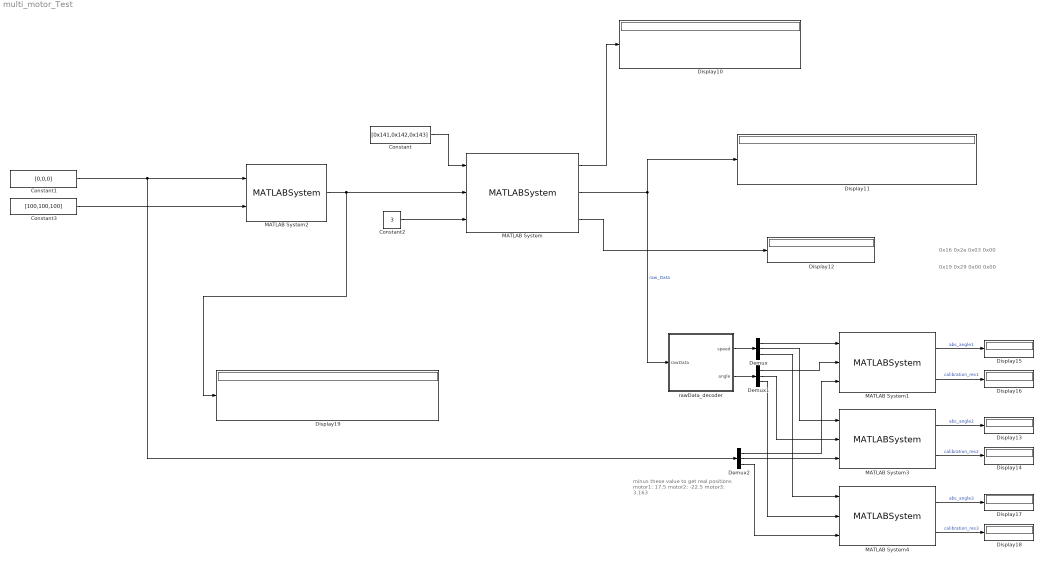
== matlab function multi_motor_Test/rawData_decoder ==
function [speed,angle] = fcn(rawData)
% angle : single loop position
% speed : speed before or after the reducer?
angle=zeros(3,1);
speed=zeros(3,1);
for i=1:1:3
    idx=i*8-7;
    angle(i) = double(typecast(rawData(idx+6:idx+7),'uint16'))/65535*360;
    speed(i) = double(typecast(rawData(idx+4:idx+5),'int16'));
end

/*
 * multi_motor_Test.c
 *
 * Student License - for use by students to meet course requirements and
 * perform academic research at degree granting institutions only.  Not
 * for government, commercial, or other organizational use.
 *
 * Code generation for model "multi_motor_Test".
 *
 * Model version              : 3.72
 * Simulink Coder version : 9.6 (R2021b) 14-May-2021
 * C source code generated on : Thu Mar 31 11:20:34 2022
 *
 * Target selection: ert.tlc
 * Note: GRT includes extra infrastructure and instrumentation for prototyping
 * Embedded hardware selection: ARM Compatible->ARM Cortex
 * Code generation objectives: Unspecified
 * Validation result: Not run
 */

#include "multi_motor_Test.h"
#include "multi_motor_Test_private.h"

/* Block signals (default storage) */
B_multi_motor_Test_T multi_motor_Test_B;

/* Block states (default storage) */
DW_multi_motor_Test_T multi_motor_Test_DW;

/* Real-time model */
static RT_MODEL_multi_motor_Test_T multi_motor_Test_M_;
RT_MODEL_multi_motor_Test_T *const multi_motor_Test_M = &multi_motor_Test_M_;

/* Model step function */
void multi_motor_Test_step(void)
{
  real_T b_varargout_1;
  real_T rtb_angle_idx_0;
  real_T rtb_angle_idx_1;
  real_T rtb_angle_idx_2;
  int32_T i;
  int32_T idx;
  int32_T rtb_speed_idx_1;
  int16_T b_y;
  uint16_T x;
  uint8_T y_0[4];
  uint8_T y[2];
  boolean_T motor_stop;

  /*  Implement algorithm. Calculate y as a function of input u and */
  /*  discrete states. */
  for (i = 0; i < 24; i++) {
    /* MATLABSystem: '<Root>/MATLAB System2' */
    multi_motor_Test_B.MATLABSystem2[i] = 0U;
  }

  /* MATLABSystem: '<Root>/MATLAB System2' incorporates:
   *  Constant: '<Root>/Constant1'
   *  Constant: '<Root>/Constant3'
   */
  for (i = 0; i < 3; i++) {
    idx = ((i + 1) << 3) - 7;
    multi_motor_Test_B.MATLABSystem2[idx - 1] = 164U;
    b_varargout_1 = floor(multi_motor_Test_P.Constant3_Value[i]);
    if (b_varargout_1 < 65536.0) {
      if (b_varargout_1 >= 0.0) {
        x = (uint16_T)b_varargout_1;
      } else {
        x = 0U;
      }
    } else {
      x = MAX_uint16_T;
    }

    memcpy((void *)&y[0], (void *)&x, (uint32_T)((size_t)2 * sizeof(uint8_T)));
    multi_motor_Test_B.MATLABSystem2[idx + 1] = y[0];
    multi_motor_Test_B.MATLABSystem2[idx + 2] = y[1];
    b_varargout_1 = floor(multi_motor_Test_P.Constant1_Value[i] * 6.0 * 100.0);
    if (b_varargout_1 < 2.147483648E+9) {
      if (b_varargout_1 >= -2.147483648E+9) {
        rtb_speed_idx_1 = (int32_T)b_varargout_1;
      } else {
        rtb_speed_idx_1 = MIN_int32_T;
      }
    } else {
      rtb_speed_idx_1 = MAX_int32_T;
    }

    memcpy((void *)&y_0[0], (void *)&rtb_speed_idx_1, (uint32_T)((size_t)4 *
            sizeof(uint8_T)));
    multi_motor_Test_B.MATLABSystem2[idx + 3] = y_0[0];
    multi_motor_Test_B.MATLABSystem2[idx + 4] = y_0[1];
    multi_motor_Test_B.MATLABSystem2[idx + 5] = y_0[2];
    multi_motor_Test_B.MATLABSystem2[idx + 6] = y_0[3];
  }

  /* MATLABSystem: '<Root>/MATLAB System' */
  /*         %% Define output properties */
  /*  canID_array: int32 * */
  /*  send_RawData: uint8 * */
  /*  dev_Num: unint8 */
  multi_motor_Test_B.MATLABSystem_o1[0] = 0;
  multi_motor_Test_B.MATLABSystem_o1[1] = 0;
  multi_motor_Test_B.MATLABSystem_o1[2] = 0;
  multi_motor_Test_B.MATLABSystem_o1[3] = 0;

  /*  up to 4 devices */
  for (i = 0; i < 32; i++) {
    /* MATLABSystem: '<Root>/MATLAB System' */
    multi_motor_Test_B.raw_Data[i] = 0U;
  }

  /* MATLABSystem: '<Root>/MATLAB System' incorporates:
   *  Constant: '<Root>/Constant'
   *  MATLABSystem: '<Root>/MATLAB System2'
   */
  /*  Call C-function implementing device output */
  /* y = coder.ceval('source_output'); */
  multi_motor_Test_B.c_canID_array[0] = multi_motor_Test_P.Constant_Value[0];
  multi_motor_Test_B.c_canID_array[1] = multi_motor_Test_P.Constant_Value[1];
  multi_motor_Test_B.c_canID_array[2] = multi_motor_Test_P.Constant_Value[2];
  for (i = 0; i < 24; i++) {
    multi_motor_Test_B.b_send_RawData[i] = multi_motor_Test_B.MATLABSystem2[i];
  }

  /* MATLABSystem: '<Root>/MATLAB System' incorporates:
   *  Constant: '<Root>/Constant2'
   */
  multi_motor_Test_B.MATLABSystem_o3 = batchMessage
    (&multi_motor_Test_B.c_canID_array[0], &multi_motor_Test_B.b_send_RawData[0],
     multi_motor_Test_P.Constant2_Value, &multi_motor_Test_B.MATLABSystem_o1[0],
     &multi_motor_Test_B.raw_Data[0]);

  /* MATLAB Function: '<Root>/rawData_decoder' incorporates:
   *  MATLABSystem: '<Root>/MATLAB System'
   */
  memcpy((void *)&x, (void *)&multi_motor_Test_B.raw_Data[6], (uint32_T)((size_t)
          1 * sizeof(uint16_T)));
  rtb_angle_idx_0 = (real_T)x / 65535.0 * 360.0;
  memcpy((void *)&b_y, (void *)&multi_motor_Test_B.raw_Data[4], (uint32_T)
         ((size_t)1 * sizeof(int16_T)));
  idx = b_y;
  memcpy((void *)&x, (void *)&multi_motor_Test_B.raw_Data[14], (uint32_T)
         ((size_t)1 * sizeof(uint16_T)));
  rtb_angle_idx_1 = (real_T)x / 65535.0 * 360.0;
  memcpy((void *)&b_y, (void *)&multi_motor_Test_B.raw_Data[12], (uint32_T)
         ((size_t)1 * sizeof(int16_T)));
  rtb_speed_idx_1 = b_y;
  memcpy((void *)&x, (void *)&multi_motor_Test_B.raw_Data[22], (uint32_T)
         ((size_t)1 * sizeof(uint16_T)));
  rtb_angle_idx_2 = (real_T)x / 65535.0 * 360.0;
  memcpy((void *)&b_y, (void *)&multi_motor_Test_B.raw_Data[20], (uint32_T)
         ((size_t)1 * sizeof(int16_T)));

  /* MATLABSystem: '<Root>/MATLAB System3' */
  /*  speed: unit in LSB */
  if (!multi_motor_Test_DW.obj_f.calibrated) {
    b_varargout_1 = 0.0;
  } else {
    b_varargout_1 = rtb_angle_idx_1 - multi_motor_Test_DW.obj_f.sgl_angle_old;
    if (b_varargout_1 < -180.0) {
      multi_motor_Test_DW.obj_f.loop_count++;
    } else if (b_varargout_1 > 180.0) {
      multi_motor_Test_DW.obj_f.loop_count--;
    }

    b_varargout_1 = rtb_angle_idx_1 / 6.0 + multi_motor_Test_DW.obj_f.loop_count
      * 60.0;
  }

  if (!multi_motor_Test_DW.obj_f.calibrated) {
    motor_stop = true;
    for (i = 0; i < 5; i++) {
      motor_stop = ((fabs(multi_motor_Test_DW.obj_f.speed_prev[i]) <= 20.0) &&
                    motor_stop);
    }

    if (motor_stop && (multi_motor_Test_P.Constant1_Value[1] == 0.0)) {
      if (rtb_angle_idx_1 <= 180.0) {
        multi_motor_Test_DW.obj_f.loop_count = 0.0;
      } else {
        multi_motor_Test_DW.obj_f.loop_count = -1.0;
      }

      multi_motor_Test_DW.obj_f.calibrated = true;
    }
  }

  multi_motor_Test_DW.obj_f.sgl_angle_old = rtb_angle_idx_1;
  multi_motor_Test_DW.obj_f.speed_prev[0] =
    multi_motor_Test_DW.obj_f.speed_prev[1];
  multi_motor_Test_DW.obj_f.speed_prev[1] =
    multi_motor_Test_DW.obj_f.speed_prev[2];
  multi_motor_Test_DW.obj_f.speed_prev[2] =
    multi_motor_Test_DW.obj_f.speed_prev[3];
  multi_motor_Test_DW.obj_f.speed_prev[3] =
    multi_motor_Test_DW.obj_f.speed_prev[4];
  multi_motor_Test_DW.obj_f.speed_prev[4] = rtb_speed_idx_1;

  /* MATLABSystem: '<Root>/MATLAB System3' */
  multi_motor_Test_B.abs_angle2 = b_varargout_1 + 22.5;

  /* MATLABSystem: '<Root>/MATLAB System3' */
  multi_motor_Test_B.calibration_res2 = multi_motor_Test_DW.obj_f.calibrated;

  /* MATLABSystem: '<Root>/MATLAB System1' */
  /*  speed: unit in LSB */
  if (!multi_motor_Test_DW.obj_n.calibrated) {
    b_varargout_1 = 0.0;
  } else {
    b_varargout_1 = rtb_angle_idx_0 - multi_motor_Test_DW.obj_n.sgl_angle_old;
    if (b_varargout_1 < -180.0) {
      multi_motor_Test_DW.obj_n.loop_count++;
    } else if (b_varargout_1 > 180.0) {
      multi_motor_Test_DW.obj_n.loop_count--;
    }

    b_varargout_1 = rtb_angle_idx_0 / 6.0 + multi_motor_Test_DW.obj_n.loop_count
      * 60.0;
  }

  if (!multi_motor_Test_DW.obj_n.calibrated) {
    motor_stop = true;
    for (i = 0; i < 5; i++) {
      motor_stop = ((fabs(multi_motor_Test_DW.obj_n.speed_prev[i]) <= 20.0) &&
                    motor_stop);
    }

    if (motor_stop && (multi_motor_Test_P.Constant1_Value[0] == 0.0)) {
      if (rtb_angle_idx_0 <= 180.0) {
        multi_motor_Test_DW.obj_n.loop_count = 0.0;
      } else {
        multi_motor_Test_DW.obj_n.loop_count = -1.0;
      }

      multi_motor_Test_DW.obj_n.calibrated = true;
    }
  }

  multi_motor_Test_DW.obj_n.sgl_angle_old = rtb_angle_idx_0;
  multi_motor_Test_DW.obj_n.speed_prev[0] =
    multi_motor_Test_DW.obj_n.speed_prev[1];
  multi_motor_Test_DW.obj_n.speed_prev[1] =
    multi_motor_Test_DW.obj_n.speed_prev[2];
  multi_motor_Test_DW.obj_n.speed_prev[2] =
    multi_motor_Test_DW.obj_n.speed_prev[3];
  multi_motor_Test_DW.obj_n.speed_prev[3] =
    multi_motor_Test_DW.obj_n.speed_prev[4];
  multi_motor_Test_DW.obj_n.speed_prev[4] = idx;

  /* MATLABSystem: '<Root>/MATLAB System1' */
  multi_motor_Test_B.abs_angle1 = b_varargout_1 + -17.5;

  /* MATLABSystem: '<Root>/MATLAB System1' */
  multi_motor_Test_B.calibration_res1 = multi_motor_Test_DW.obj_n.calibrated;

  /* MATLABSystem: '<Root>/MATLAB System4' incorporates:
   *  MATLAB Function: '<Root>/rawData_decoder'
   */
  /*  speed: unit in LSB */
  if (!multi_motor_Test_DW.obj.calibrated) {
    b_varargout_1 = 0.0;
  } else {
    b_varargout_1 = rtb_angle_idx_2 - multi_motor_Test_DW.obj.sgl_angle_old;
    if (b_varargout_1 < -180.0) {
      multi_motor_Test_DW.obj.loop_count++;
    } else if (b_varargout_1 > 180.0) {
      multi_motor_Test_DW.obj.loop_count--;
    }

    b_varargout_1 = rtb_angle_idx_2 / 6.0 + multi_motor_Test_DW.obj.loop_count *
      60.0;
  }

  if (!multi_motor_Test_DW.obj.calibrated) {
    motor_stop = true;
    for (i = 0; i < 5; i++) {
      motor_stop = ((fabs(multi_motor_Test_DW.obj.speed_prev[i]) <= 20.0) &&
                    motor_stop);
    }

    if (motor_stop && (multi_motor_Test_P.Constant1_Value[2] == 0.0)) {
      if (rtb_angle_idx_2 <= 180.0) {
        multi_motor_Test_DW.obj.loop_count = 0.0;
      } else {
        multi_motor_Test_DW.obj.loop_count = -1.0;
      }

      multi_motor_Test_DW.obj.calibrated = true;
    }
  }

  multi_motor_Test_DW.obj.sgl_angle_old = rtb_angle_idx_2;
  multi_motor_Test_DW.obj.speed_prev[0] = multi_motor_Test_DW.obj.speed_prev[1];
  multi_motor_Test_DW.obj.speed_prev[1] = multi_motor_Test_DW.obj.speed_prev[2];
  multi_motor_Test_DW.obj.speed_prev[2] = multi_motor_Test_DW.obj.speed_prev[3];
  multi_motor_Test_DW.obj.speed_prev[3] = multi_motor_Test_DW.obj.speed_prev[4];
  multi_motor_Test_DW.obj.speed_prev[4] = b_y;

  /* MATLABSystem: '<Root>/MATLAB System4' */
  multi_motor_Test_B.abs_angle3 = b_varargout_1 + -3.163;

  /* MATLABSystem: '<Root>/MATLAB System4' */
  multi_motor_Test_B.calibration_res3 = multi_motor_Test_DW.obj.calibrated;

  /* External mode */
  rtExtModeUploadCheckTrigger(1);

  {                                    /* Sample time: [0.005s, 0.0s] */
    rtExtModeUpload(0, (real_T)multi_motor_Test_M->Timing.taskTime0);
  }

  /* signal main to stop simulation */
  {                                    /* Sample time: [0.005s, 0.0s] */
    if ((rtmGetTFinal(multi_motor_Test_M)!=-1) &&
        !((rtmGetTFinal(multi_motor_Test_M)-multi_motor_Test_M->Timing.taskTime0)
          > multi_motor_Test_M->Timing.taskTime0 * (DBL_EPSILON))) {
      rtmSetErrorStatus(multi_motor_Test_M, "Simulation finished");
    }

    if (rtmGetStopRequested(multi_motor_Test_M)) {
      rtmSetErrorStatus(multi_motor_Test_M, "Simulation finished");
    }
  }

  /* Update absolute time for base rate */
  /* The "clockTick0" counts the number of times the code of this task has
   * been executed. The absolute time is the multiplication of "clockTick0"
   * and "Timing.stepSize0". Size of "clockTick0" ensures timer will not
   * overflow during the application lifespan selected.
   * Timer of this task consists of two 32 bit unsigned integers.
   * The two integers represent the low bits Timing.clockTick0 and the high bits
   * Timing.clockTickH0. When the low bit overflows to 0, the high bits increment.
   */
  if (!(++multi_motor_Test_M->Timing.clockTick0)) {
    ++multi_motor_Test_M->Timing.clockTickH0;
  }

  multi_motor_Test_M->Timing.taskTime0 = multi_motor_Test_M->Timing.clockTick0 *
    multi_motor_Test_M->Timing.stepSize0 +
    multi_motor_Test_M->Timing.clockTickH0 *
    multi_motor_Test_M->Timing.stepSize0 * 4294967296.0;
}
